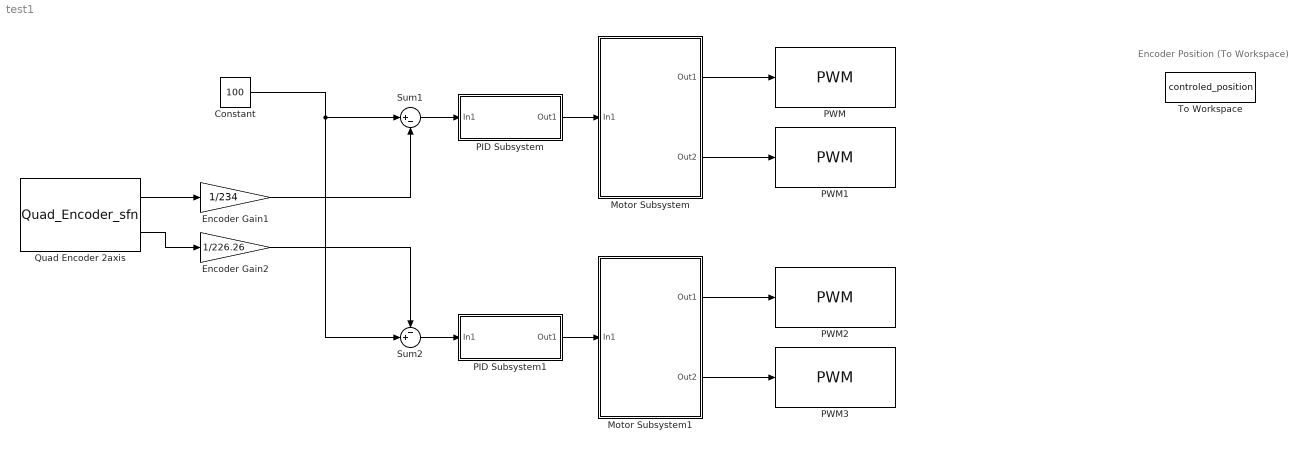
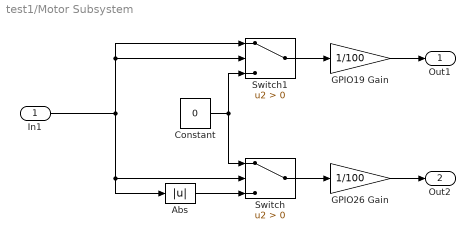
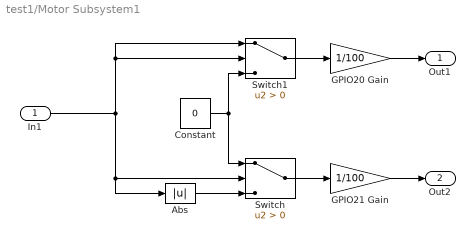
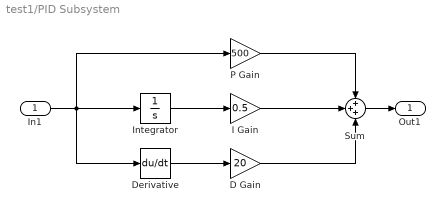
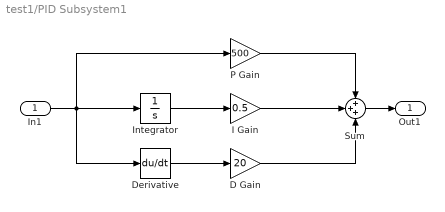
/*
 * test1.c
 *
 * Academic License - for use in teaching, academic research, and meeting
 * course requirements at degree granting institutions only.  Not for
 * government, commercial, or other organizational use.
 *
 * Code generation for model "test1".
 *
 * Model version              : 1.17
 * Simulink Coder version : 9.5 (R2021a) 14-Nov-2020
 * C source code generated on : Mon Dec  4 22:13:02 2023
 *
 * Target selection: ert.tlc
 * Note: GRT includes extra infrastructure and instrumentation for prototyping
 * Embedded hardware selection: ARM Compatible->ARM Cortex
 * Code generation objectives: Unspecified
 * Validation result: Not run
 */

#include "test1.h"
#include "test1_private.h"

/* Block signals (default storage) */
B_test1_T test1_B;

/* Continuous states */
X_test1_T test1_X;

/* Block states (default storage) */
DW_test1_T test1_DW;

/* Real-time model */
static RT_MODEL_test1_T test1_M_;
RT_MODEL_test1_T *const test1_M = &test1_M_;

/*
 * This function updates continuous states using the ODE3 fixed-step
 * solver algorithm
 */
static void rt_ertODEUpdateContinuousStates(RTWSolverInfo *si )
{
  /* Solver Matrices */
  static const real_T rt_ODE3_A[3] = {
    1.0/2.0, 3.0/4.0, 1.0
  };

  static const real_T rt_ODE3_B[3][3] = {
    { 1.0/2.0, 0.0, 0.0 },

    { 0.0, 3.0/4.0, 0.0 },

    { 2.0/9.0, 1.0/3.0, 4.0/9.0 }
  };

  time_T t = rtsiGetT(si);
  time_T tnew = rtsiGetSolverStopTime(si);
  time_T h = rtsiGetStepSize(si);
  real_T *x = rtsiGetContStates(si);
  ODE3_IntgData *id = (ODE3_IntgData *)rtsiGetSolverData(si);
  real_T *y = id->y;
  real_T *f0 = id->f[0];
  real_T *f1 = id->f[1];
  real_T *f2 = id->f[2];
  real_T hB[3];
  int_T i;
  int_T nXc = 2;
  rtsiSetSimTimeStep(si,MINOR_TIME_STEP);

  /* Save the state values at time t in y, we'll use x as ynew. */
  (void) memcpy(y, x,
                (uint_T)nXc*sizeof(real_T));

  /* Assumes that rtsiSetT and ModelOutputs are up-to-date */
  /* f0 = f(t,y) */
  rtsiSetdX(si, f0);
  test1_derivatives();

  /* f(:,2) = feval(odefile, t + hA(1), y + f*hB(:,1), args(:)(*)); */
  hB[0] = h * rt_ODE3_B[0][0];
  for (i = 0; i < nXc; i++) {
    x[i] = y[i] + (f0[i]*hB[0]);
  }

  rtsiSetT(si, t + h*rt_ODE3_A[0]);
  rtsiSetdX(si, f1);
  test1_step();
  test1_derivatives();

  /* f(:,3) = feval(odefile, t + hA(2), y + f*hB(:,2), args(:)(*)); */
  for (i = 0; i <= 1; i++) {
    hB[i] = h * rt_ODE3_B[1][i];
  }

  for (i = 0; i < nXc; i++) {
    x[i] = y[i] + (f0[i]*hB[0] + f1[i]*hB[1]);
  }

  rtsiSetT(si, t + h*rt_ODE3_A[1]);
  rtsiSetdX(si, f2);
  test1_step();
  test1_derivatives();

  /* tnew = t + hA(3);
     ynew = y + f*hB(:,3); */
  for (i = 0; i <= 2; i++) {
    hB[i] = h * rt_ODE3_B[2][i];
  }

  for (i = 0; i < nXc; i++) {
    x[i] = y[i] + (f0[i]*hB[0] + f1[i]*hB[1] + f2[i]*hB[2]);
  }

  rtsiSetT(si, tnew);
  rtsiSetSimTimeStep(si,MAJOR_TIME_STEP);
}

/* Model step function */
void test1_step(void)
{
  if (rtmIsMajorTimeStep(test1_M)) {
    /* set solver stop time */
    if (!(test1_M->Timing.clockTick0+1)) {
      rtsiSetSolverStopTime(&test1_M->solverInfo, ((test1_M->Timing.clockTickH0
        + 1) * test1_M->Timing.stepSize0 * 4294967296.0));
    } else {
      rtsiSetSolverStopTime(&test1_M->solverInfo, ((test1_M->Timing.clockTick0 +
        1) * test1_M->Timing.stepSize0 + test1_M->Timing.clockTickH0 *
        test1_M->Timing.stepSize0 * 4294967296.0));
    }
  }                                    /* end MajorTimeStep */

  /* Update absolute time of base rate at minor time step */
  if (rtmIsMinorTimeStep(test1_M)) {
    test1_M->Timing.t[0] = rtsiGetT(&test1_M->solverInfo);
  }

  {
    real_T rtb_Sum;
    real_T rtb_Sum_b;
    real_T rtb_Switch;
    real_T *lastU;

    /* S-Function (Quad_Encoder_sfn): '<Root>/Quad Encoder 2axis' */
    Quad_Encoder_sfn_Outputs_wrapper(&test1_B.QuadEncoder2axis_o1,
      &test1_B.QuadEncoder2axis_o2, &test1_DW.QuadEncoder2axis_DSTATE,
      &test1_P.QuadEncoder2axis_P1, 1, &test1_P.QuadEncoder2axis_P2, 1,
      &test1_P.QuadEncoder2axis_P3, 1, &test1_P.QuadEncoder2axis_P4, 1,
      &test1_P.QuadEncoder2axis_P5, 1, &test1_P.QuadEncoder2axis_P6, 1);

    /* Gain: '<Root>/Encoder Gain1' */
    test1_B.EncoderGain1 = (int64_T)test1_P.EncoderGain1_Gain *
      test1_B.QuadEncoder2axis_o1;

    /* Sum: '<Root>/Sum1' incorporates:
     *  Constant: '<Root>/Constant'
     *  Gain: '<Root>/Encoder Gain1'
     */
    test1_B.Sum1 = test1_P.Constant_Value - (real_T)test1_B.EncoderGain1 *
      3.637978807091713E-12;

    /* Derivative: '<S3>/Derivative' incorporates:
     *  Derivative: '<S4>/Derivative'
     */
    rtb_Sum_b = test1_M->Timing.t[0];
    if ((test1_DW.TimeStampA >= rtb_Sum_b) && (test1_DW.TimeStampB >= rtb_Sum_b))
    {
      rtb_Switch = 0.0;
    } else {
      rtb_Switch = test1_DW.TimeStampA;
      lastU = &test1_DW.LastUAtTimeA;
      if (test1_DW.TimeStampA < test1_DW.TimeStampB) {
        if (test1_DW.TimeStampB < rtb_Sum_b) {
          rtb_Switch = test1_DW.TimeStampB;
          lastU = &test1_DW.LastUAtTimeB;
        }
      } else if (test1_DW.TimeStampA >= rtb_Sum_b) {
        rtb_Switch = test1_DW.TimeStampB;
        lastU = &test1_DW.LastUAtTimeB;
      }

      rtb_Switch = (test1_B.Sum1 - *lastU) / (rtb_Sum_b - rtb_Switch);
    }

    /* End of Derivative: '<S3>/Derivative' */

    /* Sum: '<S3>/Sum' incorporates:
     *  Gain: '<S3>/D Gain'
     *  Gain: '<S3>/I Gain'
     *  Gain: '<S3>/P Gain'
     *  Integrator: '<S3>/Integrator'
     */
    rtb_Sum = (test1_P.PGain_Gain * test1_B.Sum1 + test1_P.IGain_Gain *
               test1_X.Integrator_CSTATE) + test1_P.DGain_Gain * rtb_Switch;

    /* Switch: '<S1>/Switch1' incorporates:
     *  Constant: '<S1>/Constant'
     */
    if (rtb_Sum > test1_P.Switch1_Threshold) {
      rtb_Switch = rtb_Sum;
    } else {
      rtb_Switch = test1_P.Constant_Value_d;
    }

    /* End of Switch: '<S1>/Switch1' */

    /* Gain: '<S1>/GPIO19 Gain' */
    rtb_Switch *= test1_P.GPIO19Gain_Gain;

    /* MATLABSystem: '<Root>/PWM' */
    if (!(rtb_Switch < 1.0)) {
      rtb_Switch = 1.0;
    }

    if (!(rtb_Switch > 0.0)) {
      rtb_Switch = 0.0;
    }

    EXT_PWMBlock_setDutyCycle(test1_DW.obj_g.PinNumber, rtb_Switch);

    /* End of MATLABSystem: '<Root>/PWM' */

    /* Switch: '<S1>/Switch' incorporates:
     *  Abs: '<S1>/Abs'
     *  Constant: '<S1>/Constant'
     */
    if (rtb_Sum > test1_P.Switch_Threshold) {
      rtb_Sum = test1_P.Constant_Value_d;
    } else {
      rtb_Sum = fabs(rtb_Sum);
    }

    /* End of Switch: '<S1>/Switch' */

    /* Gain: '<S1>/GPIO26 Gain' */
    rtb_Switch = test1_P.GPIO26Gain_Gain * rtb_Sum;

    /* MATLABSystem: '<Root>/PWM1' */
    if (!(rtb_Switch < 1.0)) {
      rtb_Switch = 1.0;
    }

    if (!(rtb_Switch > 0.0)) {
      rtb_Switch = 0.0;
    }

    EXT_PWMBlock_setDutyCycle(test1_DW.obj_e.PinNumber, rtb_Switch);

    /* End of MATLABSystem: '<Root>/PWM1' */
    if (rtmIsMajorTimeStep(test1_M)) {
    }

    /* Gain: '<Root>/Encoder Gain2' */
    test1_B.EncoderGain2 = (int64_T)test1_P.EncoderGain2_Gain *
      test1_B.QuadEncoder2axis_o2;

    /* Sum: '<Root>/Sum2' incorporates:
     *  Constant: '<Root>/Constant'
     *  Gain: '<Root>/Encoder Gain2'
     */
    test1_B.Sum2 = test1_P.Constant_Value - (real_T)test1_B.EncoderGain2 *
      3.637978807091713E-12;

    /* Derivative: '<S4>/Derivative' */
    if ((test1_DW.TimeStampA_l >= rtb_Sum_b) && (test1_DW.TimeStampB_j >=
         rtb_Sum_b)) {
      rtb_Switch = 0.0;
    } else {
      rtb_Switch = test1_DW.TimeStampA_l;
      lastU = &test1_DW.LastUAtTimeA_e;
      if (test1_DW.TimeStampA_l < test1_DW.TimeStampB_j) {
        if (test1_DW.TimeStampB_j < rtb_Sum_b) {
          rtb_Switch = test1_DW.TimeStampB_j;
          lastU = &test1_DW.LastUAtTimeB_m;
        }
      } else if (test1_DW.TimeStampA_l >= rtb_Sum_b) {
        rtb_Switch = test1_DW.TimeStampB_j;
        lastU = &test1_DW.LastUAtTimeB_m;
      }

      rtb_Switch = (test1_B.Sum2 - *lastU) / (rtb_Sum_b - rtb_Switch);
    }

    /* Sum: '<S4>/Sum' incorporates:
     *  Gain: '<S4>/D Gain'
     *  Gain: '<S4>/I Gain'
     *  Gain: '<S4>/P Gain'
     *  Integrator: '<S4>/Integrator'
     */
    rtb_Sum_b = (test1_P.PGain_Gain_m * test1_B.Sum2 + test1_P.IGain_Gain_k *
                 test1_X.Integrator_CSTATE_b) + test1_P.DGain_Gain_o *
      rtb_Switch;

    /* Switch: '<S2>/Switch1' incorporates:
     *  Constant: '<S2>/Constant'
     */
    if (rtb_Sum_b > test1_P.Switch1_Threshold_c) {
      rtb_Switch = rtb_Sum_b;
    } else {
      rtb_Switch = test1_P.Constant_Value_e;
    }

    /* End of Switch: '<S2>/Switch1' */

    /* Gain: '<S2>/GPIO20 Gain' */
    rtb_Switch *= test1_P.GPIO20Gain_Gain;

    /* MATLABSystem: '<Root>/PWM2' */
    if (!(rtb_Switch < 1.0)) {
      rtb_Switch = 1.0;
    }

    if (!(rtb_Switch > 0.0)) {
      rtb_Switch = 0.0;
    }

    EXT_PWMBlock_setDutyCycle(test1_DW.obj_p.PinNumber, rtb_Switch);

    /* End of MATLABSystem: '<Root>/PWM2' */

    /* Switch: '<S2>/Switch' incorporates:
     *  Abs: '<S2>/Abs'
     *  Constant: '<S2>/Constant'
     */
    if (rtb_Sum_b > test1_P.Switch_Threshold_m) {
      rtb_Sum_b = test1_P.Constant_Value_e;
    } else {
      rtb_Sum_b = fabs(rtb_Sum_b);
    }

    /* End of Switch: '<S2>/Switch' */

    /* Gain: '<S2>/GPIO21 Gain' */
    rtb_Switch = test1_P.GPIO21Gain_Gain * rtb_Sum_b;

    /* MATLABSystem: '<Root>/PWM3' */
    if (!(rtb_Switch < 1.0)) {
      rtb_Switch = 1.0;
    }

    if (!(rtb_Switch > 0.0)) {
      rtb_Switch = 0.0;
    }

    EXT_PWMBlock_setDutyCycle(test1_DW.obj.PinNumber, rtb_Switch);

    /* End of MATLABSystem: '<Root>/PWM3' */
    if (rtmIsMajorTimeStep(test1_M)) {
    }
  }

  if (rtmIsMajorTimeStep(test1_M)) {
    real_T *lastU;

    /* Update for S-Function (Quad_Encoder_sfn): '<Root>/Quad Encoder 2axis' */

    /* S-Function "Quad_Encoder_sfn_wrapper" Block: <Root>/Quad Encoder 2axis */
    Quad_Encoder_sfn_Update_wrapper(&test1_B.QuadEncoder2axis_o1,
      &test1_B.QuadEncoder2axis_o2, &test1_DW.QuadEncoder2axis_DSTATE,
      &test1_P.QuadEncoder2axis_P1, 1, &test1_P.QuadEncoder2axis_P2, 1,
      &test1_P.QuadEncoder2axis_P3, 1, &test1_P.QuadEncoder2axis_P4, 1,
      &test1_P.QuadEncoder2axis_P5, 1, &test1_P.QuadEncoder2axis_P6, 1);

    /* Update for Derivative: '<S3>/Derivative' */
    if (test1_DW.TimeStampA == (rtInf)) {
      test1_DW.TimeStampA = test1_M->Timing.t[0];
      lastU = &test1_DW.LastUAtTimeA;
    } else if (test1_DW.TimeStampB == (rtInf)) {
      test1_DW.TimeStampB = test1_M->Timing.t[0];
      lastU = &test1_DW.LastUAtTimeB;
    } else if (test1_DW.TimeStampA < test1_DW.TimeStampB) {
      test1_DW.TimeStampA = test1_M->Timing.t[0];
      lastU = &test1_DW.LastUAtTimeA;
    } else {
      test1_DW.TimeStampB = test1_M->Timing.t[0];
      lastU = &test1_DW.LastUAtTimeB;
    }

    *lastU = test1_B.Sum1;

    /* End of Update for Derivative: '<S3>/Derivative' */

    /* Update for Derivative: '<S4>/Derivative' */
    if (test1_DW.TimeStampA_l == (rtInf)) {
      test1_DW.TimeStampA_l = test1_M->Timing.t[0];
      lastU = &test1_DW.LastUAtTimeA_e;
    } else if (test1_DW.TimeStampB_j == (rtInf)) {
      test1_DW.TimeStampB_j = test1_M->Timing.t[0];
      lastU = &test1_DW.LastUAtTimeB_m;
    } else if (test1_DW.TimeStampA_l < test1_DW.TimeStampB_j) {
      test1_DW.TimeStampA_l = test1_M->Timing.t[0];
      lastU = &test1_DW.LastUAtTimeA_e;
    } else {
      test1_DW.TimeStampB_j = test1_M->Timing.t[0];
      lastU = &test1_DW.LastUAtTimeB_m;
    }

    *lastU = test1_B.Sum2;

    /* End of Update for Derivative: '<S4>/Derivative' */

    /* External mode */
    rtExtModeUploadCheckTrigger(2);

    {                                  /* Sample time: [0.0s, 0.0s] */
      rtExtModeUpload(0, (real_T)test1_M->Timing.t[0]);
    }

    if (rtmIsMajorTimeStep(test1_M)) { /* Sample time: [0.001s, 0.0s] */
      rtExtModeUpload(1, (real_T)(((test1_M->Timing.clockTick1+
        test1_M->Timing.clockTickH1* 4294967296.0)) * 0.001));
    }
  }                                    /* end MajorTimeStep */

  if (rtmIsMajorTimeStep(test1_M)) {
    /* signal main to stop simulation */
    {                                  /* Sample time: [0.0s, 0.0s] */
      if ((rtmGetTFinal(test1_M)!=-1) &&
          !((rtmGetTFinal(test1_M)-(((test1_M->Timing.clockTick1+
               test1_M->Timing.clockTickH1* 4294967296.0)) * 0.001)) >
            (((test1_M->Timing.clockTick1+test1_M->Timing.clockTickH1*
               4294967296.0)) * 0.001) * (DBL_EPSILON))) {
        rtmSetErrorStatus(test1_M, "Simulation finished");
      }

      if (rtmGetStopRequested(test1_M)) {
        rtmSetErrorStatus(test1_M, "Simulation finished");
      }
    }

    rt_ertODEUpdateContinuousStates(&test1_M->solverInfo);

    /* Update absolute time for base rate */
    /* The "clockTick0" counts the number of times the code of this task has
     * been executed. The absolute time is the multiplication of "clockTick0"
     * and "Timing.stepSize0". Size of "clockTick0" ensures timer will not
     * overflow during the application lifespan selected.
     * Timer of this task consists of two 32 bit unsigned integers.
     * The two integers represent the low bits Timing.clockTick0 and the high bits
     * Timing.clockTickH0. When the low bit overflows to 0, the high bits increment.
     */
    if (!(++test1_M->Timing.clockTick0)) {
      ++test1_M->Timing.clockTickH0;
    }

    test1_M->Timing.t[0] = rtsiGetSolverStopTime(&test1_M->solverInfo);

    {
      /* Update absolute timer for sample time: [0.001s, 0.0s] */
      /* The "clockTick1" counts the number of times the code of this task has
       * been executed. The resolution of this integer timer is 0.001, which is the step size
       * of the task. Size of "clockTick1" ensures timer will not overflow during the
       * application lifespan selected.
       * Timer of this task consists of two 32 bit unsigned integers.
       * The two integers represent the low bits Timing.clockTick1 and the high bits
       * Timing.clockTickH1. When the low bit overflows to 0, the high bits increment.
       */
      test1_M->Timing.clockTick1++;
      if (!test1_M->Timing.clockTick1) {
        test1_M->Timing.clockTickH1++;
      }
    }
  }                                    /* end MajorTimeStep */
}
